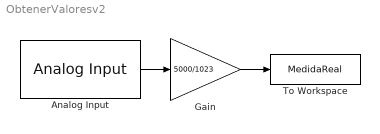
/*
 * File: ObtenerValoresv2.c
 *
 * Code generated for Simulink model 'ObtenerValoresv2'.
 *
 * Model version                  : 1.3
 * Simulink Coder version         : 25.1 (R2025a) 21-Nov-2024
 * C/C++ source code generated on : Fri Jul 11 02:43:24 2025
 *
 * Target selection: ert.tlc
 * Embedded hardware selection: Atmel->AVR
 * Code generation objectives: Unspecified
 * Validation result: Not run
 */

#include "ObtenerValoresv2.h"
#include "rtwtypes.h"
#include "ObtenerValoresv2_private.h"

/* Block signals (default storage) */
B_ObtenerValoresv2_T ObtenerValoresv2_B;

/* Block states (default storage) */
DW_ObtenerValoresv2_T ObtenerValoresv2_DW;

/* Real-time model */
static RT_MODEL_ObtenerValoresv2_T ObtenerValoresv2_M_;
RT_MODEL_ObtenerValoresv2_T *const ObtenerValoresv2_M = &ObtenerValoresv2_M_;
static void rate_monotonic_scheduler(void);

/*
 * Set which subrates need to run this base step (base rate always runs).
 * This function must be called prior to calling the model step function
 * in order to remember which rates need to run this base step.  The
 * buffering of events allows for overlapping preemption.
 */
void ObtenerValoresv2_SetEventsForThisBaseStep(boolean_T *eventFlags)
{
  /* Task runs when its counter is zero, computed via rtmStepTask macro */
  eventFlags[1] = ((boolean_T)rtmStepTask(ObtenerValoresv2_M, 1));
}

/*
 *         This function updates active task flag for each subrate
 *         and rate transition flags for tasks that exchange data.
 *         The function assumes rate-monotonic multitasking scheduler.
 *         The function must be called at model base rate so that
 *         the generated code self-manages all its subrates and rate
 *         transition flags.
 */
static void rate_monotonic_scheduler(void)
{
  /* Compute which subrates run during the next base time step.  Subrates
   * are an integer multiple of the base rate counter.  Therefore, the subtask
   * counter is reset when it reaches its limit (zero means run).
   */
  (ObtenerValoresv2_M->Timing.TaskCounters.TID[1])++;
  if ((ObtenerValoresv2_M->Timing.TaskCounters.TID[1]) > 32) {/* Sample time: [0.0033s, 0.0s] */
    ObtenerValoresv2_M->Timing.TaskCounters.TID[1] = 0;
  }
}

/* Model step function for TID0 */
void ObtenerValoresv2_step0(void)      /* Sample time: [0.0001s, 0.0s] */
{
  {                                    /* Sample time: [0.0001s, 0.0s] */
    rate_monotonic_scheduler();
  }

  /* Update absolute time */
  /* The "clockTick0" counts the number of times the code of this task has
   * been executed. The resolution of this integer timer is 0.0001, which is the step size
   * of the task. Size of "clockTick0" ensures timer will not overflow during the
   * application lifespan selected.
   */
  ObtenerValoresv2_M->Timing.clockTick0++;
}

/* Model step function for TID1 */
void ObtenerValoresv2_step1(void)      /* Sample time: [0.0033s, 0.0s] */
{
  uint16_T b_varargout_1;

  /* MATLABSystem: '<Root>/Analog Input' */
  ObtenerValoresv2_DW.obj.AnalogInDriverObj.MW_ANALOGIN_HANDLE =
    MW_AnalogIn_GetHandle(14UL);
  MW_AnalogInSingle_ReadResult
    (ObtenerValoresv2_DW.obj.AnalogInDriverObj.MW_ANALOGIN_HANDLE,
     &b_varargout_1, MW_ANALOGIN_UINT16);

  /* Gain: '<Root>/Gain' incorporates:
   *  MATLABSystem: '<Root>/Analog Input'
   * */
  ObtenerValoresv2_B.Gain = (uint32_T)ObtenerValoresv2_P.Gain_Gain *
    b_varargout_1;

  /* Update absolute time */
  /* The "clockTick1" counts the number of times the code of this task has
   * been executed. The resolution of this integer timer is 0.0033, which is the step size
   * of the task. Size of "clockTick1" ensures timer will not overflow during the
   * application lifespan selected.
   */
  ObtenerValoresv2_M->Timing.clockTick1++;
}
